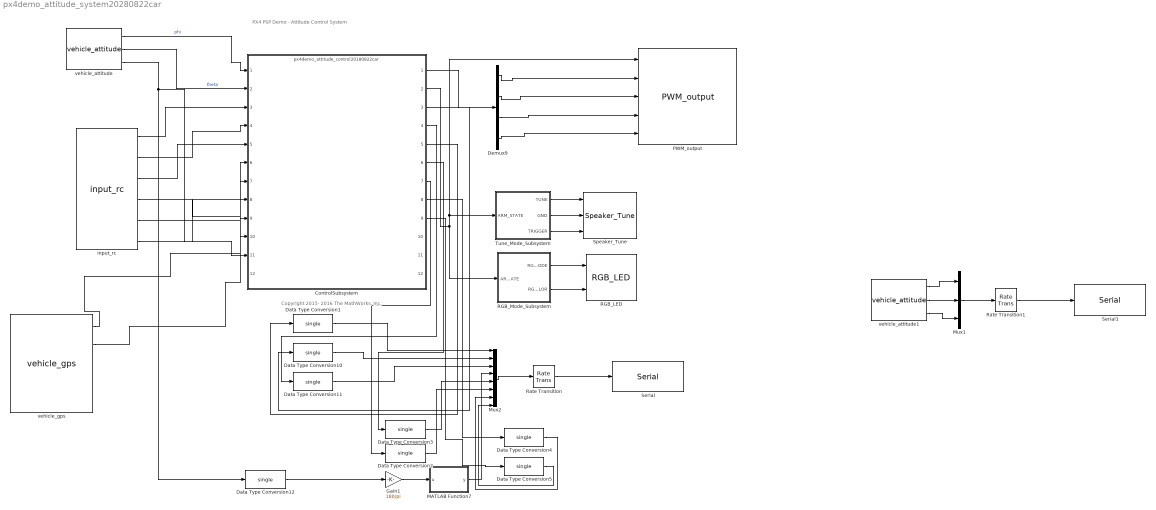
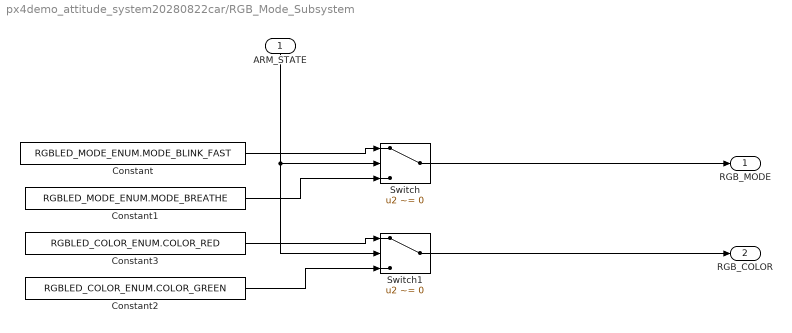
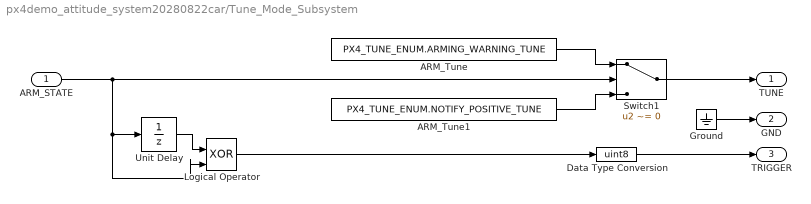
== matlab function px4demo_attitude_system20280822car/MATLAB Function7 ==
function y = fcn(u)
if(u<=0)
    y=360+u;
else
    y=u
end

/*
 * Academic License - for use in teaching, academic research, and meeting
 * course requirements at degree granting institutions only.  Not for
 * government, commercial, or other organizational use.
 *
 * File: px4demo_attitude_system20280822car.c
 *
 * Code generated for Simulink model 'px4demo_attitude_system20280822car'.
 *
 * Model version                  : 1.157
 * Simulink Coder version         : 8.11 (R2016b) 25-Aug-2016
 * C/C++ source code generated on : Tue Jul 30 11:31:40 2019
 *
 * Target selection: ert.tlc
 * Embedded hardware selection: ARM Compatible->ARM Cortex
 * Code generation objectives: Unspecified
 * Validation result: Not run
 */

#include "px4demo_attitude_system20280822car.h"
#include "px4demo_attitude_system20280822car_private.h"
#define px4demo_attitude_system20_block (true)

const char *g_pwm_device = PWM_OUTPUT0_DEVICE_PATH;
int g_pwm_fd = -1;
bool g_pwm_enabled = false;
rtTimingBridge px4demo_attitude_sys_TimingBrdg;
const real_T px4demo_attitude_system20280822car_RGND = 0.0;/* real_T ground */
const real32_T px4demo_attitude_system20280822car_R32GND = 0.0F;/* real32_T ground */
const uint8_T px4demo_attitude_system20280822car_U8GND = 0U;/* uint8_T ground */

/* Block signals (auto storage) */
B_px4demo_attitude_system2028_T px4demo_attitude_system202808_B;

/* Block states (auto storage) */
DW_px4demo_attitude_system202_T px4demo_attitude_system20280_DW;

/* Real-time model */
RT_MODEL_px4demo_attitude_sys_T px4demo_attitude_system20280_M_;
RT_MODEL_px4demo_attitude_sys_T *const px4demo_attitude_system20280_M =
  &px4demo_attitude_system20280_M_;
static void rate_scheduler(void);

/*
 *   This function updates active task flag for each subrate.
 * The function is called at model base rate, hence the
 * generated code self-manages all its subrates.
 */
static void rate_scheduler(void)
{
  /* Compute which subrates run during the next base time step.  Subrates
   * are an integer multiple of the base rate counter.  Therefore, the subtask
   * counter is reset when it reaches its limit (zero means run).
   */
  (px4demo_attitude_system20280_M->Timing.TaskCounters.TID[1])++;
  if ((px4demo_attitude_system20280_M->Timing.TaskCounters.TID[1]) > 24) {/* Sample time: [0.1s, 0.0s] */
    px4demo_attitude_system20280_M->Timing.TaskCounters.TID[1] = 0;
  }

  (px4demo_attitude_system20280_M->Timing.TaskCounters.TID[2])++;
  if ((px4demo_attitude_system20280_M->Timing.TaskCounters.TID[2]) > 74) {/* Sample time: [0.3s, 0.0s] */
    px4demo_attitude_system20280_M->Timing.TaskCounters.TID[2] = 0;
  }

  (px4demo_attitude_system20280_M->Timing.TaskCounters.TID[3])++;
  if ((px4demo_attitude_system20280_M->Timing.TaskCounters.TID[3]) > 124) {/* Sample time: [0.5s, 0.0s] */
    px4demo_attitude_system20280_M->Timing.TaskCounters.TID[3] = 0;
  }

  (px4demo_attitude_system20280_M->Timing.TaskCounters.TID[4])++;
  if ((px4demo_attitude_system20280_M->Timing.TaskCounters.TID[4]) > 4999) {/* Sample time: [20.0s, 0.0s] */
    px4demo_attitude_system20280_M->Timing.TaskCounters.TID[4] = 0;
  }
}

/* Model step function */
void px4demo_attitude_system20280822car_step(void)
{
  /* S-Function (sfun_px4_input_rc): '<Root>/input_rc' */
  {
    bool updated;
    orb_check(px4demo_attitude_system20280_DW.input_rc_input_rc_fd.fd, &updated);
    if (updated) {
      struct rc_input_values pwm_inputs;

      /* copy input_rc raw data into local buffer (uint16)*/
      orb_copy(ORB_ID(input_rc),
               px4demo_attitude_system20280_DW.input_rc_input_rc_fd.fd,
               &pwm_inputs);
      px4demo_attitude_system202808_B.input_rc_o1 = pwm_inputs.values[0];
      px4demo_attitude_system202808_B.input_rc_o2 = pwm_inputs.values[1];
      px4demo_attitude_system202808_B.input_rc_o3 = pwm_inputs.values[2];
      px4demo_attitude_system202808_B.input_rc_o4 = pwm_inputs.values[3];
      px4demo_attitude_system202808_B.input_rc_o5 = pwm_inputs.values[4];
      px4demo_attitude_system202808_B.input_rc_o6 = pwm_inputs.values[5];
    }
  }

  /* S-Function (sfun_px4_gps): '<Root>/vehicle_gps' */
  {
    int poll_ret;
    bool updated;
    orb_check(px4demo_attitude_system20280_DW.vehicle_gps_gps_fd.fd, &updated);
    if (updated) {
      /* obtained GPS data */
      struct vehicle_gps_position_s raw;

      /* copy sensors raw data into local buffer */
      orb_copy(ORB_ID(vehicle_gps_position),
               px4demo_attitude_system20280_DW.vehicle_gps_gps_fd.fd, &raw);

      /* read out Lat/Lon Values */
      px4demo_attitude_system202808_B.vehicle_gps_o1 = raw.lat;
      px4demo_attitude_system202808_B.vehicle_gps_o2 = raw.lon;

      /* Altitude in 1E-3 meters (millimeters) above MSL  */
      px4demo_attitude_system202808_B.vehicle_gps_o3 = raw.alt;

      /* 0-1: no fix, 2: 2D fix, 3: 3D fix. Some applications will not use the value of this field unless it is at least two, so always correctly fill in the fix.   */
      px4demo_attitude_system202808_B.vehicle_gps_o4 = raw.fix_type;

      /* Number of satellites used  */
      px4demo_attitude_system202808_B.vehicle_gps_o5 = raw.satellites_used;
    }
  }

  /* ModelReference: '<Root>/ControlSubsystem' */
  px4demo_attitude_control2018082((real32_T*)
    &px4demo_attitude_system20280822car_R32GND, (real32_T*)
    &px4demo_attitude_system20280822car_R32GND,
    &px4demo_attitude_system202808_B.input_rc_o1,
    &px4demo_attitude_system202808_B.input_rc_o2,
    &px4demo_attitude_system202808_B.input_rc_o3,
    &px4demo_attitude_system202808_B.input_rc_o4,
    &px4demo_attitude_system202808_B.input_rc_o5,
    &px4demo_attitude_system202808_B.input_rc_o6,
    &px4demo_attitude_system202808_B.vehicle_gps_o1,
    &px4demo_attitude_system202808_B.vehicle_gps_o2, (real32_T*)
    &px4demo_attitude_system20280822car_R32GND, (real32_T*)
    &px4demo_attitude_system20280822car_R32GND,
    &px4demo_attitude_system202808_B.ControlSubsystem_o1[0],
    &px4demo_attitude_system202808_B.ControlSubsystem_o2,
    &px4demo_attitude_system202808_B.ControlSubsystem_o3,
    &px4demo_attitude_system202808_B.ControlSubsystem_o4,
    &px4demo_attitude_system202808_B.ControlSubsystem_o5,
    &px4demo_attitude_system202808_B.ControlSubsystem_o6,
    &px4demo_attitude_system202808_B.ControlSubsystem_o7,
    &px4demo_attitude_system202808_B.ControlSubsystem_o8,
    &px4demo_attitude_system202808_B.ControlSubsystem_o9,
    &px4demo_attitude_system202808_B.ControlSubsystem_o10,
    &px4demo_attitude_system202808_B.ControlSubsystem_o11,
    &px4demo_attitude_system202808_B.ControlSubsystem_o12,
    &(px4demo_attitude_system20280_DW.ControlSubsystem_DWORK1.rtb),
    &(px4demo_attitude_system20280_DW.ControlSubsystem_DWORK1.rtdw));

  /* S-Function (sfun_px4_pwm): '<Root>/PWM_output' */
  if (px4demo_attitude_system202808_B.ControlSubsystem_o2 == true) {
    if (g_pwm_enabled == false) {
      int rc;

      /* arm system */
      rc = ioctl(g_pwm_fd, PWM_SERVO_ARM, 0);
      if (rc != OK)
        err(1,"PWM_SERVO_ARM");
      else {
        ioctl(g_pwm_fd, PWM_SERVO_SET(0), 900);
        ioctl(g_pwm_fd, PWM_SERVO_SET(1), 900);
        ioctl(g_pwm_fd, PWM_SERVO_SET(2), 900);
        ioctl(g_pwm_fd, PWM_SERVO_SET(3), 900);
        g_pwm_enabled = true;
        printf("***ARMED*** PWM fd = %d\n", g_pwm_fd);
      }
    }
  } else {
    if (g_pwm_enabled == true) {
      int rc;

      /* disarm system if enabled */
      ioctl(g_pwm_fd, PWM_SERVO_SET(0), 900);
      ioctl(g_pwm_fd, PWM_SERVO_SET(1), 900);
      ioctl(g_pwm_fd, PWM_SERVO_SET(2), 900);
      ioctl(g_pwm_fd, PWM_SERVO_SET(3), 900);
      rc = ioctl(g_pwm_fd, PWM_SERVO_DISARM, 0);
      g_pwm_enabled = false;
      if (rc != OK)
        err(1, "PWM_SERVO_DISARM");
      else
        printf("***DISARMED*** PWM fd = %d\n", g_pwm_fd);
    }
  }

  if (g_pwm_enabled) {
    /* output the PWM signals */
    ioctl(g_pwm_fd, PWM_SERVO_SET(0), (unsigned int)
          px4demo_attitude_system202808_B.ControlSubsystem_o1[0]);
    ioctl(g_pwm_fd, PWM_SERVO_SET(1), (unsigned int)
          px4demo_attitude_system202808_B.ControlSubsystem_o1[1]);
    ioctl(g_pwm_fd, PWM_SERVO_SET(2), (unsigned int)
          px4demo_attitude_system202808_B.ControlSubsystem_o1[2]);
    ioctl(g_pwm_fd, PWM_SERVO_SET(3), (unsigned int)
          px4demo_attitude_system202808_B.ControlSubsystem_o1[3]);
  }

  if (px4demo_attitude_system20280_M->Timing.TaskCounters.TID[3] == 0) {
    /* Switch: '<S2>/Switch' incorporates:
     *  Constant: '<S2>/Constant'
     *  Constant: '<S2>/Constant1'
     *  Constant: '<S2>/Constant2'
     *  Constant: '<S2>/Constant3'
     *  Switch: '<S2>/Switch1'
     */
    if (px4demo_attitude_system202808_B.ControlSubsystem_o2) {
      px4demo_attitude_system202808_B.Switch = MODE_BLINK_FAST;
      px4demo_attitude_system202808_B.Switch1 = COLOR_RED;
    } else {
      px4demo_attitude_system202808_B.Switch = MODE_BREATHE;
      px4demo_attitude_system202808_B.Switch1 = COLOR_GREEN;
    }

    /* End of Switch: '<S2>/Switch' */

    /* S-Function (sfun_px4_rgbled): '<Root>/RGB_LED' */
    ioctl(px4demo_attitude_system20280_DW.RGB_LED_rgbled_fd, RGBLED_SET_MODE,
          px4demo_attitude_system202808_B.Switch);
    ioctl(px4demo_attitude_system20280_DW.RGB_LED_rgbled_fd, RGBLED_SET_COLOR,
          px4demo_attitude_system202808_B.Switch1);
  }

  /* Switch: '<S3>/Switch1' incorporates:
   *  Constant: '<S3>/ARM_Tune'
   *  Constant: '<S3>/ARM_Tune1'
   */
  if (px4demo_attitude_system202808_B.ControlSubsystem_o2) {
    px4demo_attitude_system202808_B.Switch1_i = ARMING_WARNING_TUNE;
  } else {
    px4demo_attitude_system202808_B.Switch1_i = NOTIFY_POSITIVE_TUNE;
  }

  /* End of Switch: '<S3>/Switch1' */

  /* DataTypeConversion: '<S3>/Data Type Conversion' incorporates:
   *  Logic: '<S3>/Logical Operator'
   *  UnitDelay: '<S3>/Unit Delay'
   */
  px4demo_attitude_system202808_B.DataTypeConversion = (uint8_T)((int8_T)
    px4demo_attitude_system20280_DW.UnitDelay_DSTATE ^ (int8_T)
    px4demo_attitude_system202808_B.ControlSubsystem_o2);

  /* S-Function (sfun_px4_tune): '<Root>/Speaker_Tune' */
  if (px4demo_attitude_system20280_DW.Speaker_Tune_tune_fd == -1) {
    px4demo_attitude_system20280_DW.Speaker_Tune_tune_fd = open
      (TONEALARM0_DEVICE_PATH, O_WRONLY);
    if ((px4demo_attitude_system202808_B.DataTypeConversion > 0) &&
        (px4demo_attitude_system202808_B.DataTypeConversion !=
         px4demo_attitude_system20280_DW.Speaker_Tune_triggerState)) {
      if (px4demo_attitude_system202808_B.DataTypeConversion == 1) {
        ioctl(px4demo_attitude_system20280_DW.Speaker_Tune_tune_fd,
              TONE_SET_ALARM, px4demo_attitude_system202808_B.Switch1_i);
      } else if (px4demo_attitude_system202808_B.DataTypeConversion == 2) {
        write(px4demo_attitude_system20280_DW.Speaker_Tune_tune_fd, (uint8_T*)
              &px4demo_attitude_system20280822car_U8GND, 1);
      }
    }

    // save the state of the trigger
    px4demo_attitude_system20280_DW.Speaker_Tune_triggerState =
      px4demo_attitude_system202808_B.DataTypeConversion;
  } else {
    if ((px4demo_attitude_system202808_B.DataTypeConversion > 0) &&
        (px4demo_attitude_system202808_B.DataTypeConversion !=
         px4demo_attitude_system20280_DW.Speaker_Tune_triggerState)) {
      if (px4demo_attitude_system202808_B.DataTypeConversion == 1) {
        ioctl(px4demo_attitude_system20280_DW.Speaker_Tune_tune_fd,
              TONE_SET_ALARM, px4demo_attitude_system202808_B.Switch1_i);
      } else if (px4demo_attitude_system202808_B.DataTypeConversion == 2) {
        write(px4demo_attitude_system20280_DW.Speaker_Tune_tune_fd, (uint8_T*)
              &px4demo_attitude_system20280822car_U8GND, 1);
      }
    }

    // save the state of the trigger
    px4demo_attitude_system20280_DW.Speaker_Tune_triggerState =
      px4demo_attitude_system202808_B.DataTypeConversion;
  }

  /* MATLAB Function 'MATLAB Function7': '<S1>:1' */

  /* S-Function (sfun_px4_vehicle_attitude): '<Root>/vehicle_attitude1' */
  {
    bool updated;
    orb_check(px4demo_attitude_system20280_DW.vehicle_attitude1_vehicle_attit.fd,
              &updated);
    if (updated) {
      struct vehicle_attitude_s raw;
      orb_copy(ORB_ID(vehicle_attitude),
               px4demo_attitude_system20280_DW.vehicle_attitude1_vehicle_attit.fd,
               &raw);

      /* read out the Roll value */
      px4demo_attitude_system202808_B.vehicle_attitude1_o1 = raw.roll;// phi

      /* read out the Pitch value */
      px4demo_attitude_system202808_B.vehicle_attitude1_o2 = raw.pitch;// theta

      /* read out the Yaw value */
      px4demo_attitude_system202808_B.vehicle_attitude1_o3 = raw.yaw;// psi
    }
  }

  /* RateTransition: '<Root>/Rate Transition1' */
  if (px4demo_attitude_system20280_M->Timing.TaskCounters.TID[2] == 0) {
    px4demo_attitude_system202808_B.RateTransition1_m[0] =
      px4demo_attitude_system202808_B.vehicle_attitude1_o1;
    px4demo_attitude_system202808_B.RateTransition1_m[1] =
      px4demo_attitude_system202808_B.vehicle_attitude1_o2;
    px4demo_attitude_system202808_B.RateTransition1_m[2] =
      px4demo_attitude_system202808_B.vehicle_attitude1_o3;

    /* Start for MATLABSystem: '<Root>/Serial1' incorporates:
     *  MATLABSystem: '<Root>/Serial1'
     */
    MW_writeSerial(px4demo_attitude_system20280_DW.obj.fh_index,
                   px4demo_attitude_system202808_B.RateTransition1_m, 12U);
  }

  /* End of RateTransition: '<Root>/Rate Transition1' */

  /* RateTransition: '<Root>/Rate Transition' */
  if (px4demo_attitude_system20280_M->Timing.TaskCounters.TID[3] == 0) {
    /* Start for MATLABSystem: '<Root>/Serial' incorporates:
     *  MATLABSystem: '<Root>/Serial'
     */
    MW_writeSerial(px4demo_attitude_system20280_DW.obj_a.fh_index, (real_T*)
                   &px4demo_attitude_system20280822car_RGND, 8U);
  }

  /* End of RateTransition: '<Root>/Rate Transition' */

  /* Update for UnitDelay: '<S3>/Unit Delay' */
  px4demo_attitude_system20280_DW.UnitDelay_DSTATE =
    px4demo_attitude_system202808_B.ControlSubsystem_o2;
  rate_scheduler();
}
